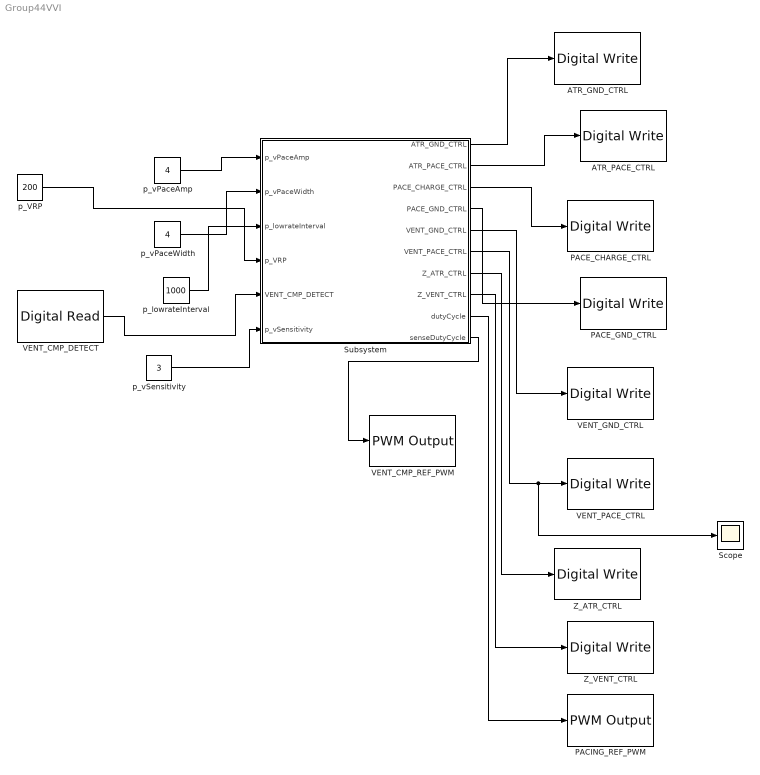
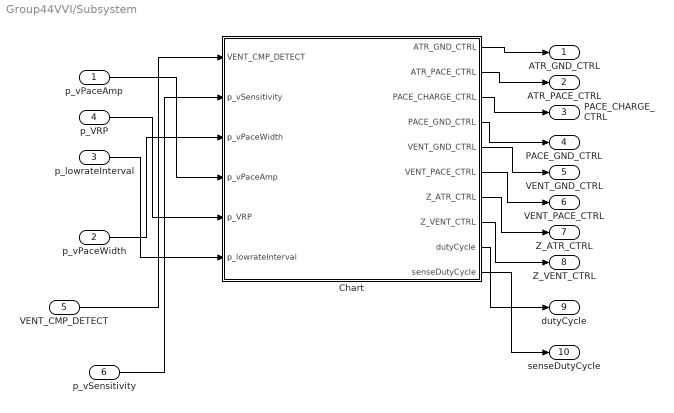
== stateflow chart Group44VVI/Subsystem/Chart ==
  state ChargeC22_Atrial_DischargeC21
    entry:
    ATR_PACE_CTRL = false;
    VENT_PACE_CTRL = false;
    PACE_CHARGE_CTRL = true;
    PACE_GND_CTRL = true;
    Z_ATR_CTRL = false;
    Z_VENT_CTRL = false;
    ATR_GND_CTRL = false;
    VENT_GND_CTRL = true;
    dutyCycle=p_vPaceAmp/5.0*100
    senseDutyCycle = p_vSensitivity/5.0*100
  state PaceAtria
    entry:
    PACE_CHARGE_CTRL = false;
    PACE_GND_CTRL = true;
    ATR_PACE_CTRL = false;
    ATR_GND_CTRL = false;
    Z_ATR_CTRL = false;
    Z_VENT_CTRL = false;
    VENT_GND_CTRL = false;
    VENT_PACE_CTRL = true;
    %natPaceDetected=false;
  state AlertPeriod
  (default) -> ChargeC22_Atrial_DischargeC21
  PaceAtria -> ChargeC22_Atrial_DischargeC21 : after(p_vPaceWidth,msec)
  AlertPeriod -> PaceAtria [order 1] : after(p_lowrateInterval-p_vPaceWidth-p_VRP,msec)
  AlertPeriod -> ChargeC22_Atrial_DischargeC21 [order 2] : [VENT_CMP_DETECT == true ]
  ChargeC22_Atrial_DischargeC21 -> AlertPeriod : after(p_VRP,msec)
  data: p_lowrateInterval input; ATR_GND_CTRL output; ATR_PACE_CTRL output; PACE_CHARGE_CTRL output; PACE_GND_CTRL output; VENT_GND_CTRL output; VENT_PACE_CTRL output; Z_ATR_CTRL output; Z_VENT_CTRL output; dutyCycle output; senseDutyCycle output; VENT_CMP_DETECT input; p_vSensitivity input; p_vPaceWidth input; p_vPaceAmp input; p_VRP input

/*
 * Academic License - for use in teaching, academic research, and meeting
 * course requirements at degree granting institutions only.  Not for
 * government, commercial, or other organizational use.
 *
 * File: Group44VVI.c
 *
 * Code generated for Simulink model 'Group44VVI'.
 *
 * Model version                  : 1.2
 * Simulink Coder version         : 9.8 (R2022b) 13-May-2022
 * C/C++ source code generated on : Mon Oct 17 16:30:25 2022
 *
 * Target selection: ert.tlc
 * Embedded hardware selection: ARM Compatible->ARM Cortex
 * Code generation objectives: Unspecified
 * Validation result: Not run
 */

#include "Group44VVI.h"
#include "rtwtypes.h"
#include <math.h>
#include "Group44VVI_types.h"

/* Named constants for Chart: '<S1>/Chart' */
#define Group44VVI_IN_AlertPeriod      ((uint8_T)1U)
#define Group44VVI_IN_PaceAtria        ((uint8_T)3U)
#define IN_ChargeC22_Atrial_DischargeC2 ((uint8_T)2U)

/* Block signals (default storage) */
B_Group44VVI_T Group44VVI_B;

/* Block states (default storage) */
DW_Group44VVI_T Group44VVI_DW;

/* Real-time model */
static RT_MODEL_Group44VVI_T Group44VVI_M_;
RT_MODEL_Group44VVI_T *const Group44VVI_M = &Group44VVI_M_;

/* Model step function */
void Group44VVI_step(void)
{
  boolean_T rtb_VENT_CMP_DETECT_0;

  /* MATLABSystem: '<Root>/VENT_CMP_DETECT' */
  if (Group44VVI_DW.obj.SampleTime != Group44VVI_P.VENT_CMP_DETECT_SampleTime) {
    Group44VVI_DW.obj.SampleTime = Group44VVI_P.VENT_CMP_DETECT_SampleTime;
  }

  rtb_VENT_CMP_DETECT_0 = MW_digitalIO_read
    (Group44VVI_DW.obj.MW_DIGITALIO_HANDLE);

  /* Chart: '<S1>/Chart' incorporates:
   *  Constant: '<Root>/p_VRP'
   *  Constant: '<Root>/p_lowrateInterval'
   *  Constant: '<Root>/p_vPaceAmp'
   *  Constant: '<Root>/p_vPaceWidth'
   *  Constant: '<Root>/p_vSensitivity'
   *  MATLABSystem: '<Root>/VENT_CMP_DETECT'
   */
  if (Group44VVI_DW.temporalCounter_i1 < MAX_uint32_T) {
    Group44VVI_DW.temporalCounter_i1++;
  }

  if (Group44VVI_DW.is_active_c3_Group44VVI == 0U) {
    Group44VVI_DW.is_active_c3_Group44VVI = 1U;
    Group44VVI_DW.is_c3_Group44VVI = IN_ChargeC22_Atrial_DischargeC2;
    Group44VVI_DW.temporalCounter_i1 = 0U;
    Group44VVI_B.ATR_PACE_CTRL = false;
    Group44VVI_B.VENT_PACE_CTRL = false;
    Group44VVI_B.PACE_CHARGE_CTRL = true;
    Group44VVI_B.PACE_GND_CTRL = true;
    Group44VVI_B.Z_ATR_CTRL = false;
    Group44VVI_B.Z_VENT_CTRL = false;
    Group44VVI_B.ATR_GND_CTRL = false;
    Group44VVI_B.VENT_GND_CTRL = true;
    Group44VVI_B.dutyCycle = Group44VVI_P.p_vPaceAmp_Value / 5.0 * 100.0;
    Group44VVI_B.senseDutyCycle = Group44VVI_P.p_vSensitivity_Value / 5.0 *
      100.0;
  } else {
    switch (Group44VVI_DW.is_c3_Group44VVI) {
     case Group44VVI_IN_AlertPeriod:
      if (Group44VVI_DW.temporalCounter_i1 >= (uint32_T)ceil
          ((Group44VVI_P.p_lowrateInterval_Value -
            Group44VVI_P.p_vPaceWidth_Value) - Group44VVI_P.p_VRP_Value)) {
        Group44VVI_DW.is_c3_Group44VVI = Group44VVI_IN_PaceAtria;
        Group44VVI_DW.temporalCounter_i1 = 0U;
        Group44VVI_B.PACE_CHARGE_CTRL = false;
        Group44VVI_B.PACE_GND_CTRL = true;
        Group44VVI_B.ATR_PACE_CTRL = false;
        Group44VVI_B.ATR_GND_CTRL = false;
        Group44VVI_B.Z_ATR_CTRL = false;
        Group44VVI_B.Z_VENT_CTRL = false;
        Group44VVI_B.VENT_GND_CTRL = false;
        Group44VVI_B.VENT_PACE_CTRL = true;
      } else if (rtb_VENT_CMP_DETECT_0) {
        Group44VVI_DW.is_c3_Group44VVI = IN_ChargeC22_Atrial_DischargeC2;
        Group44VVI_DW.temporalCounter_i1 = 0U;
        Group44VVI_B.ATR_PACE_CTRL = false;
        Group44VVI_B.VENT_PACE_CTRL = false;
        Group44VVI_B.PACE_CHARGE_CTRL = true;
        Group44VVI_B.PACE_GND_CTRL = true;
        Group44VVI_B.Z_ATR_CTRL = false;
        Group44VVI_B.Z_VENT_CTRL = false;
        Group44VVI_B.ATR_GND_CTRL = false;
        Group44VVI_B.VENT_GND_CTRL = true;
        Group44VVI_B.dutyCycle = Group44VVI_P.p_vPaceAmp_Value / 5.0 * 100.0;
        Group44VVI_B.senseDutyCycle = Group44VVI_P.p_vSensitivity_Value / 5.0 *
          100.0;
      }
      break;

     case IN_ChargeC22_Atrial_DischargeC2:
      Group44VVI_B.ATR_PACE_CTRL = false;
      Group44VVI_B.VENT_PACE_CTRL = false;
      Group44VVI_B.PACE_CHARGE_CTRL = true;
      Group44VVI_B.PACE_GND_CTRL = true;
      Group44VVI_B.Z_ATR_CTRL = false;
      Group44VVI_B.Z_VENT_CTRL = false;
      Group44VVI_B.ATR_GND_CTRL = false;
      Group44VVI_B.VENT_GND_CTRL = true;
      if (Group44VVI_DW.temporalCounter_i1 >= (uint32_T)ceil
          (Group44VVI_P.p_VRP_Value)) {
        Group44VVI_DW.is_c3_Group44VVI = Group44VVI_IN_AlertPeriod;
        Group44VVI_DW.temporalCounter_i1 = 0U;
      }
      break;

     default:
      /* case IN_PaceAtria: */
      Group44VVI_B.PACE_CHARGE_CTRL = false;
      Group44VVI_B.PACE_GND_CTRL = true;
      Group44VVI_B.ATR_PACE_CTRL = false;
      Group44VVI_B.ATR_GND_CTRL = false;
      Group44VVI_B.Z_ATR_CTRL = false;
      Group44VVI_B.Z_VENT_CTRL = false;
      Group44VVI_B.VENT_GND_CTRL = false;
      Group44VVI_B.VENT_PACE_CTRL = true;
      if (Group44VVI_DW.temporalCounter_i1 >= (uint32_T)ceil
          (Group44VVI_P.p_vPaceWidth_Value)) {
        Group44VVI_DW.is_c3_Group44VVI = IN_ChargeC22_Atrial_DischargeC2;
        Group44VVI_DW.temporalCounter_i1 = 0U;
        Group44VVI_B.VENT_PACE_CTRL = false;
        Group44VVI_B.PACE_CHARGE_CTRL = true;
        Group44VVI_B.VENT_GND_CTRL = true;
        Group44VVI_B.dutyCycle = Group44VVI_P.p_vPaceAmp_Value / 5.0 * 100.0;
        Group44VVI_B.senseDutyCycle = Group44VVI_P.p_vSensitivity_Value / 5.0 *
          100.0;
      }
      break;
    }
  }

  /* End of Chart: '<S1>/Chart' */

  /* MATLABSystem: '<Root>/ATR_GND_CTRL' */
  MW_digitalIO_write(Group44VVI_DW.obj_h5.MW_DIGITALIO_HANDLE,
                     Group44VVI_B.ATR_GND_CTRL);

  /* MATLABSystem: '<Root>/ATR_PACE_CTRL' */
  MW_digitalIO_write(Group44VVI_DW.obj_h.MW_DIGITALIO_HANDLE,
                     Group44VVI_B.ATR_PACE_CTRL);

  /* MATLABSystem: '<Root>/PACE_CHARGE_CTRL' */
  MW_digitalIO_write(Group44VVI_DW.obj_j.MW_DIGITALIO_HANDLE,
                     Group44VVI_B.PACE_CHARGE_CTRL);

  /* MATLABSystem: '<Root>/PACE_GND_CTRL' */
  MW_digitalIO_write(Group44VVI_DW.obj_b.MW_DIGITALIO_HANDLE,
                     Group44VVI_B.PACE_GND_CTRL);

  /* MATLABSystem: '<Root>/PACING_REF_PWM' */
  MW_PWM_SetDutyCycle(Group44VVI_DW.obj_lh.MW_PWM_HANDLE, Group44VVI_B.dutyCycle);

  /* MATLABSystem: '<Root>/VENT_CMP_REF_PWM' */
  MW_PWM_SetDutyCycle(Group44VVI_DW.obj_g.MW_PWM_HANDLE,
                      Group44VVI_B.senseDutyCycle);

  /* MATLABSystem: '<Root>/VENT_GND_CTRL' */
  MW_digitalIO_write(Group44VVI_DW.obj_l.MW_DIGITALIO_HANDLE,
                     Group44VVI_B.VENT_GND_CTRL);

  /* MATLABSystem: '<Root>/VENT_PACE_CTRL' */
  MW_digitalIO_write(Group44VVI_DW.obj_o.MW_DIGITALIO_HANDLE,
                     Group44VVI_B.VENT_PACE_CTRL);

  /* MATLABSystem: '<Root>/Z_ATR_CTRL' */
  MW_digitalIO_write(Group44VVI_DW.obj_m.MW_DIGITALIO_HANDLE,
                     Group44VVI_B.Z_ATR_CTRL);

  /* MATLABSystem: '<Root>/Z_VENT_CTRL' */
  MW_digitalIO_write(Group44VVI_DW.obj_c.MW_DIGITALIO_HANDLE,
                     Group44VVI_B.Z_VENT_CTRL);
}
